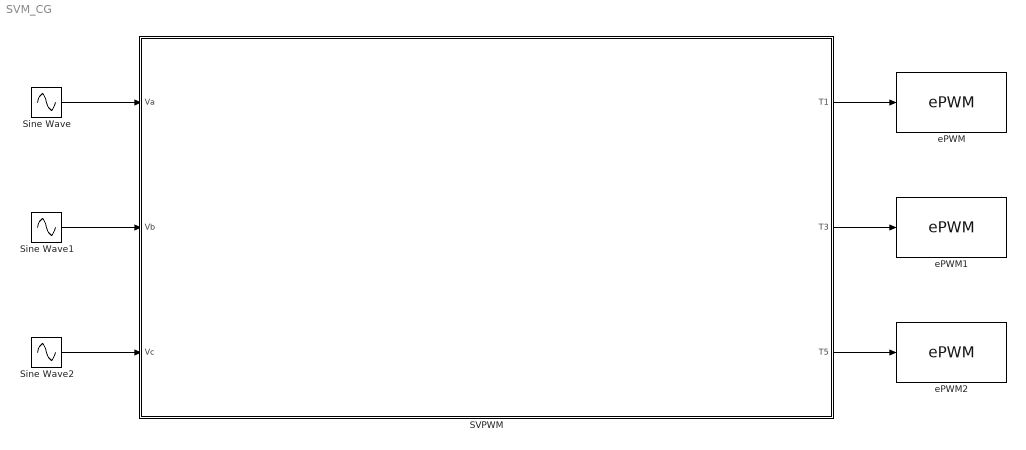
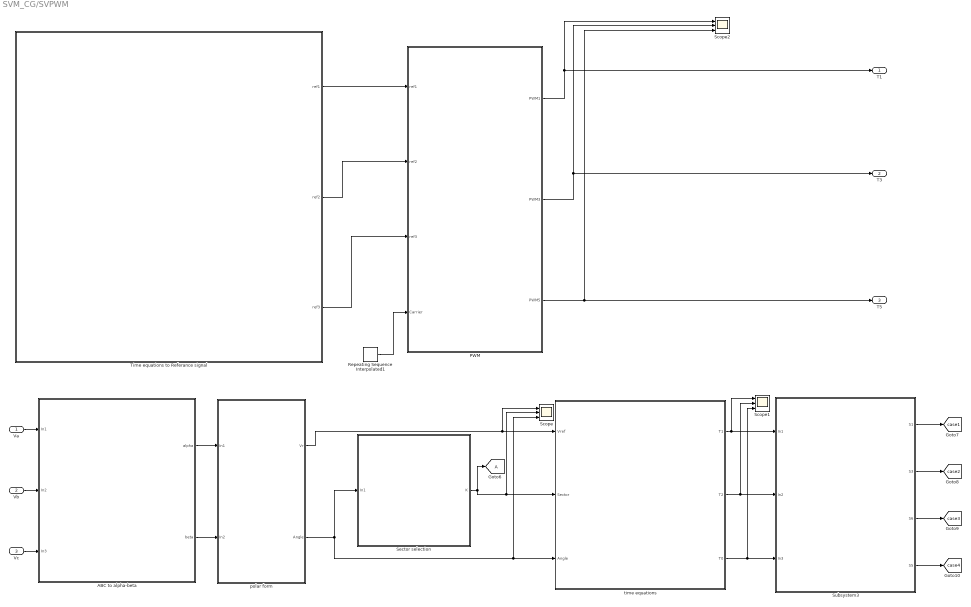
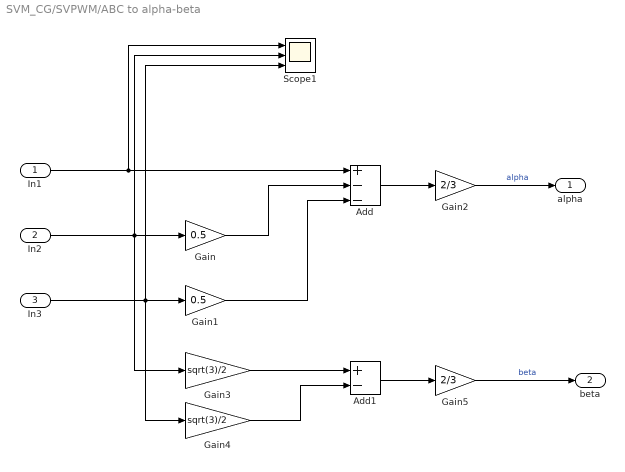
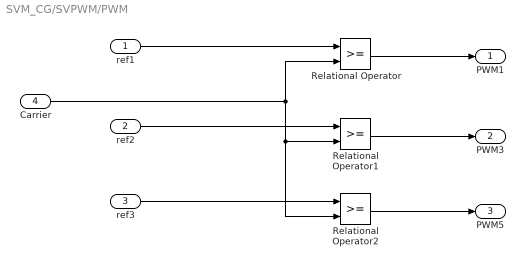
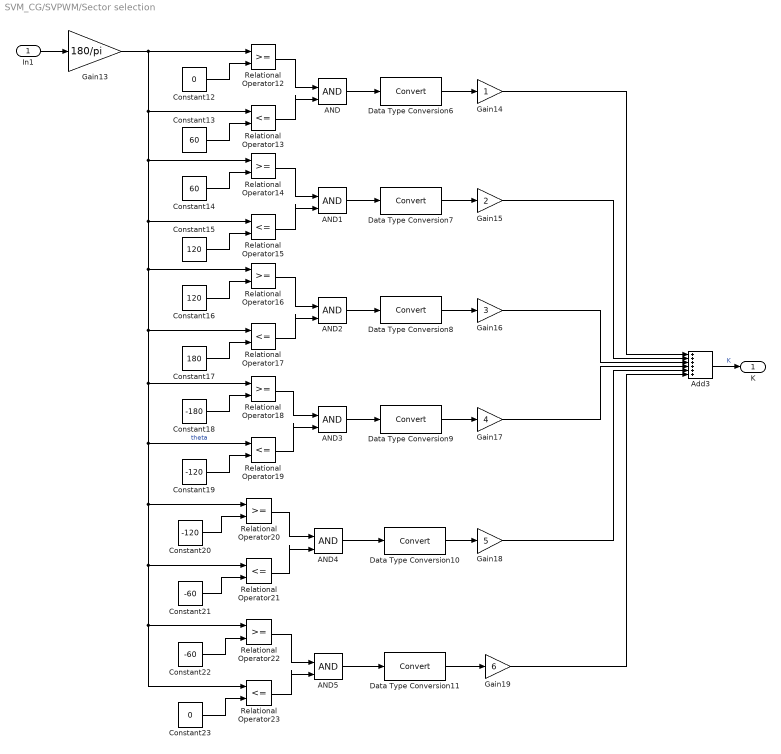
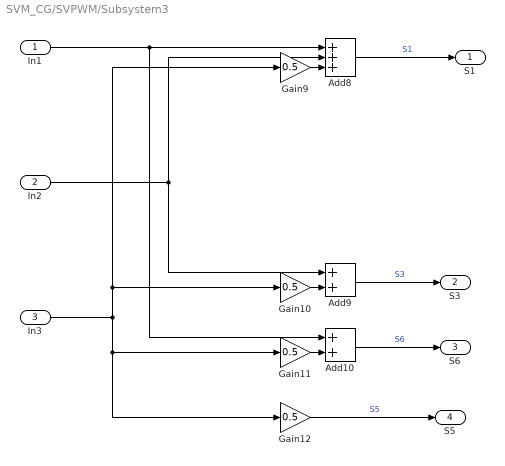
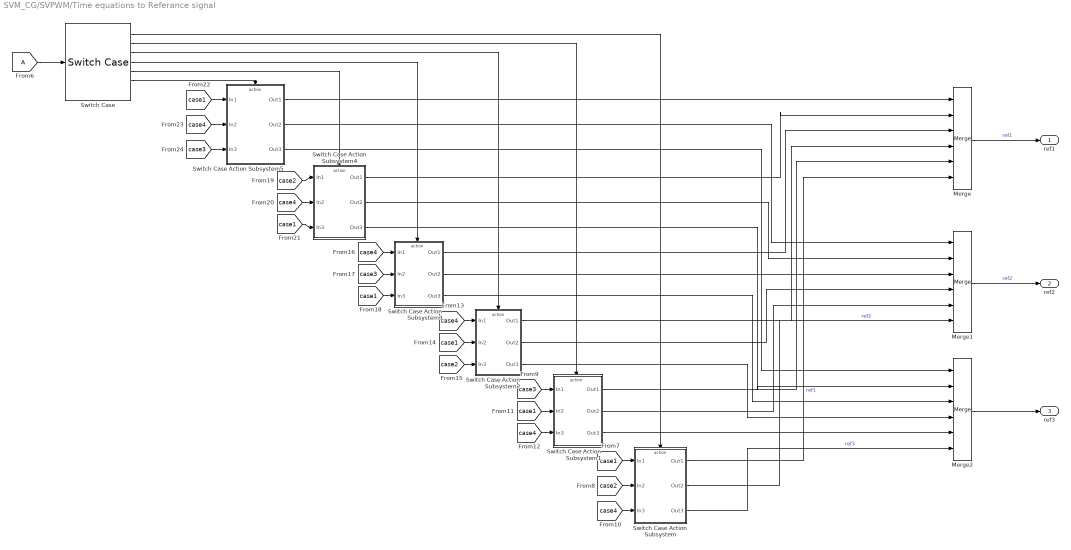
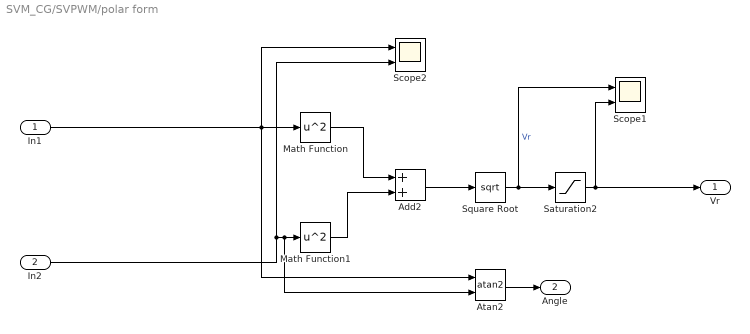
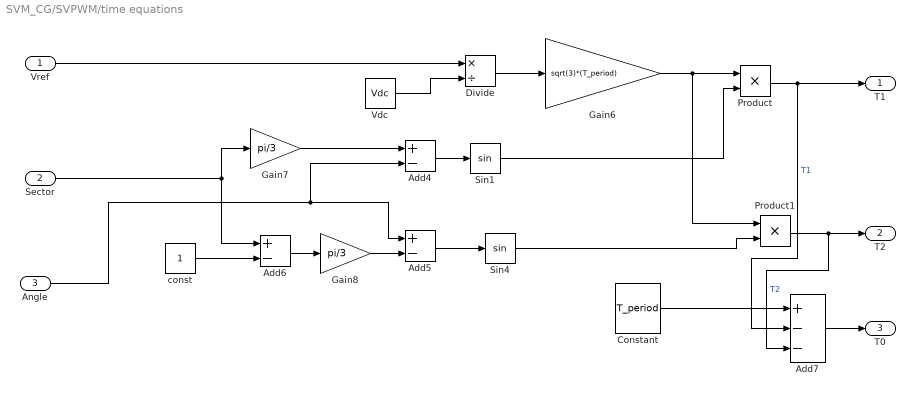
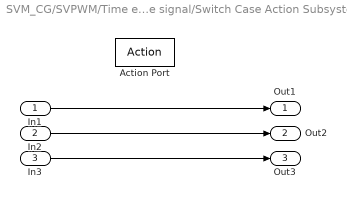
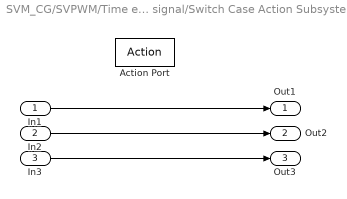
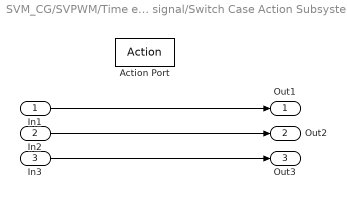
== system SVM_CG/SVPWM/Time equations to Referance signal/Switch Case Action Subsystem3 ==
  In1 : Inport
  In2 : Inport  Port=2
  In3 : Inport  Port=3
  Action Port : ActionPort  ActionPortLabel=case [ 4 ]:
  Out1 : Outport
  Out2 : Outport  Port=2
  Out3 : Outport  Port=3
  wires:
  In1/1 -> Out1/1
  In2/1 -> Out2/1
  In3/1 -> Out3/1

== system SVM_CG/SVPWM/Time equations to Referance signal/Switch Case Action Subsystem4 ==
  In1 : Inport
  In2 : Inport  Port=2
  In3 : Inport  Port=3
  Action Port : ActionPort  ActionPortLabel=case [ 5 ]:
  Out1 : Outport
  Out2 : Outport  Port=2
  Out3 : Outport  Port=3
  wires:
  In1/1 -> Out1/1
  In2/1 -> Out2/1
  In3/1 -> Out3/1

== system SVM_CG/SVPWM/Time equations to Referance signal/Switch Case Action Subsystem5 ==
  In1 : Inport
  In2 : Inport  Port=2
  In3 : Inport  Port=3
  Action Port : ActionPort  ActionPortLabel=case [ 6 ]:
  Out1 : Outport
  Out2 : Outport  Port=2
  Out3 : Outport  Port=3
  wires:
  In1/1 -> Out1/1
  In2/1 -> Out2/1
  In3/1 -> Out3/1

/*
 * File: SVM_CG.c
 *
 * Code generated for Simulink model 'SVM_CG'.
 *
 * Model version                  : 1.1
 * Simulink Coder version         : 24.1 (R2024a) 19-Nov-2023
 * C/C++ source code generated on : Tue May  6 17:00:42 2025
 *
 * Target selection: ert.tlc
 * Embedded hardware selection: Texas Instruments->C2000
 * Code generation objectives: Unspecified
 * Validation result: Not run
 */

#include "SVM_CG.h"
#include "rtwtypes.h"
#include "SVM_CG_private.h"
#include <math.h>
#include "rt_nonfinite.h"
#include <string.h>
#include "rt_defines.h"

/* Block signals (default storage) */
B_SVM_CG_T SVM_CG_B;

/* Block states (default storage) */
DW_SVM_CG_T SVM_CG_DW;

/* Real-time model */
static RT_MODEL_SVM_CG_T SVM_CG_M_;
RT_MODEL_SVM_CG_T *const SVM_CG_M = &SVM_CG_M_;
real_T look1_binlcpw(real_T u0, const real_T bp0[], const real_T table[],
                     uint32_T maxIndex)
{
  real_T frac;
  real_T yL_0d0;
  uint32_T bpIdx;
  uint32_T iLeft;
  uint32_T iRght;

  /* Column-major Lookup 1-D
     Search method: 'binary'
     Use previous index: 'off'
     Interpolation method: 'Linear point-slope'
     Extrapolation method: 'Clip'
     Use last breakpoint for index at or above upper limit: 'off'
     Remove protection against out-of-range input in generated code: 'off'
   */
  /* Prelookup - Index and Fraction
     Index Search method: 'binary'
     Extrapolation method: 'Clip'
     Use previous index: 'off'
     Use last breakpoint for index at or above upper limit: 'off'
     Remove protection against out-of-range input in generated code: 'off'
   */
  if (u0 <= bp0[0UL]) {
    iLeft = 0UL;
    frac = 0.0;
  } else if (u0 < bp0[maxIndex]) {
    /* Binary Search */
    bpIdx = maxIndex >> 1UL;
    iLeft = 0UL;
    iRght = maxIndex;
    while (iRght - iLeft > 1UL) {
      if (u0 < bp0[bpIdx]) {
        iRght = bpIdx;
      } else {
        iLeft = bpIdx;
      }

      bpIdx = (iRght + iLeft) >> 1UL;
    }

    frac = (u0 - bp0[iLeft]) / (bp0[iLeft + 1UL] - bp0[iLeft]);
  } else {
    iLeft = maxIndex - 1UL;
    frac = 1.0;
  }

  /* Column-major Interpolation 1-D
     Interpolation method: 'Linear point-slope'
     Use last breakpoint for index at or above upper limit: 'off'
     Overflow mode: 'portable wrapping'
   */
  yL_0d0 = table[iLeft];
  return (table[iLeft + 1UL] - yL_0d0) * frac + yL_0d0;
}

/*
 * Output and update for action system:
 *    '<S7>/Switch Case Action Subsystem'
 *    '<S7>/Switch Case Action Subsystem1'
 *    '<S7>/Switch Case Action Subsystem2'
 *    '<S7>/Switch Case Action Subsystem3'
 *    '<S7>/Switch Case Action Subsystem4'
 *    '<S7>/Switch Case Action Subsystem5'
 */
void SVM_C_SwitchCaseActionSubsystem(real_T rtu_In1, real_T rtu_In2, real_T
  rtu_In3, real_T *rty_Out1, real_T *rty_Out2, real_T *rty_Out3)
{
  /* SignalConversion generated from: '<S13>/In1' */
  *rty_Out1 = rtu_In1;

  /* SignalConversion generated from: '<S13>/In2' */
  *rty_Out2 = rtu_In2;

  /* SignalConversion generated from: '<S13>/In3' */
  *rty_Out3 = rtu_In3;
}

real_T rt_atan2d_snf(real_T u0, real_T u1)
{
  real_T y;
  int16_T tmp;
  int16_T tmp_0;
  if (rtIsNaN(u0) || rtIsNaN(u1)) {
    y = (rtNaN);
  } else if (rtIsInf(u0) && rtIsInf(u1)) {
    if (u0 > 0.0) {
      tmp = 1;
    } else {
      tmp = -1;
    }

    if (u1 > 0.0) {
      tmp_0 = 1;
    } else {
      tmp_0 = -1;
    }

    y = atan2(tmp, tmp_0);
  } else if (u1 == 0.0) {
    if (u0 > 0.0) {
      y = RT_PI / 2.0;
    } else if (u0 < 0.0) {
      y = -(RT_PI / 2.0);
    } else {
      y = 0.0;
    }
  } else {
    y = atan2(u0, u1);
  }

  return y;
}

/* Model step function */
void SVM_CG_step(void)
{
  real_T rtb_Gain6;
  real_T rtb_theta;
  int16_T rtAction;

  /* Reset subsysRan breadcrumbs */
  srClearBC(SVM_CG_DW.SwitchCaseActionSubsystem.SwitchCaseActionSubsystem_Subsy);

  /* Sin: '<Root>/Sine Wave' incorporates:
   *  Sin: '<Root>/Sine Wave1'
   *  Sin: '<Root>/Sine Wave2'
   */
  rtb_Gain6 = SVM_CG_M->Timing.t[0];

  /* Sin: '<Root>/Sine Wave' */
  SVM_CG_B.SineWave = sin(SVM_CG_P.SineWave_Freq * rtb_Gain6 +
    SVM_CG_P.SineWave_Phase) * SVM_CG_P.SineWave_Amp + SVM_CG_P.SineWave_Bias;

  /* Sin: '<Root>/Sine Wave1' */
  SVM_CG_B.SineWave1 = sin(SVM_CG_P.SineWave1_Freq * rtb_Gain6 +
    SVM_CG_P.SineWave1_Phase) * SVM_CG_P.SineWave1_Amp + SVM_CG_P.SineWave1_Bias;

  /* Sin: '<Root>/Sine Wave2' */
  SVM_CG_B.SineWave2 = sin(SVM_CG_P.SineWave2_Freq * rtb_Gain6 +
    SVM_CG_P.SineWave2_Phase) * SVM_CG_P.SineWave2_Amp + SVM_CG_P.SineWave2_Bias;

  /* Gain: '<S2>/Gain2' incorporates:
   *  Gain: '<S2>/Gain'
   *  Gain: '<S2>/Gain1'
   *  Sum: '<S2>/Add'
   */
  SVM_CG_B.alpha = ((SVM_CG_B.SineWave - SVM_CG_P.Gain_Gain * SVM_CG_B.SineWave1)
                    - SVM_CG_P.Gain1_Gain * SVM_CG_B.SineWave2) *
    SVM_CG_P.Gain2_Gain;

  /* Gain: '<S2>/Gain5' incorporates:
   *  Gain: '<S2>/Gain3'
   *  Gain: '<S2>/Gain4'
   *  Sum: '<S2>/Add1'
   */
  SVM_CG_B.beta = (SVM_CG_P.Gain3_Gain * SVM_CG_B.SineWave1 -
                   SVM_CG_P.Gain4_Gain * SVM_CG_B.SineWave2) *
    SVM_CG_P.Gain5_Gain;

  /* Sqrt: '<S8>/Square Root' incorporates:
   *  Math: '<S8>/Math Function'
   *  Math: '<S8>/Math Function1'
   *  Sum: '<S8>/Add2'
   */
  SVM_CG_B.Vr = sqrt(SVM_CG_B.alpha * SVM_CG_B.alpha + SVM_CG_B.beta *
                     SVM_CG_B.beta);

  /* Saturate: '<S8>/Saturation2' */
  SVM_CG_B.Saturation2 = 0.95 * SVM_CG_P.Vdc / 1.7320508075688772;
  if (!(SVM_CG_B.Vr > SVM_CG_B.Saturation2)) {
    if (SVM_CG_B.Vr < SVM_CG_P.Saturation2_LowerSat) {
      /* Saturate: '<S8>/Saturation2' */
      SVM_CG_B.Saturation2 = SVM_CG_P.Saturation2_LowerSat;
    } else {
      /* Saturate: '<S8>/Saturation2' */
      SVM_CG_B.Saturation2 = SVM_CG_B.Vr;
    }
  }

  /* End of Saturate: '<S8>/Saturation2' */
  /* Gain: '<S9>/Gain6' incorporates:
   *  Constant: '<S9>/Vdc'
   *  Product: '<S9>/Divide'
   */
  rtb_Gain6 = 1.7320508075688772 * SVM_CG_P.T_period * (SVM_CG_B.Saturation2 /
    SVM_CG_P.Vdc);

  /* Trigonometry: '<S8>/Atan2' */
  SVM_CG_B.Atan2 = rt_atan2d_snf(SVM_CG_B.alpha, SVM_CG_B.beta);

  /* Gain: '<S5>/Gain13' */
  rtb_theta = SVM_CG_P.Gain13_Gain * SVM_CG_B.Atan2;

  /* Sum: '<S5>/Add3' incorporates:
   *  Constant: '<S5>/Constant12'
   *  Constant: '<S5>/Constant13'
   *  Constant: '<S5>/Constant14'
   *  Constant: '<S5>/Constant15'
   *  Constant: '<S5>/Constant16'
   *  Constant: '<S5>/Constant17'
   *  Constant: '<S5>/Constant18'
   *  Constant: '<S5>/Constant19'
   *  Constant: '<S5>/Constant20'
   *  Constant: '<S5>/Constant21'
   *  Constant: '<S5>/Constant22'
   *  Constant: '<S5>/Constant23'
   *  DataTypeConversion: '<S5>/Data Type Conversion10'
   *  DataTypeConversion: '<S5>/Data Type Conversion11'
   *  DataTypeConversion: '<S5>/Data Type Conversion6'
   *  DataTypeConversion: '<S5>/Data Type Conversion7'
   *  DataTypeConversion: '<S5>/Data Type Conversion8'
   *  DataTypeConversion: '<S5>/Data Type Conversion9'
   *  Gain: '<S5>/Gain14'
   *  Gain: '<S5>/Gain15'
   *  Gain: '<S5>/Gain16'
   *  Gain: '<S5>/Gain17'
   *  Gain: '<S5>/Gain18'
   *  Gain: '<S5>/Gain19'
   *  Logic: '<S5>/AND'
   *  Logic: '<S5>/AND1'
   *  Logic: '<S5>/AND2'
   *  Logic: '<S5>/AND3'
   *  Logic: '<S5>/AND4'
   *  Logic: '<S5>/AND5'
   *  RelationalOperator: '<S5>/Relational Operator12'
   *  RelationalOperator: '<S5>/Relational Operator13'
   *  RelationalOperator: '<S5>/Relational Operator14'
   *  RelationalOperator: '<S5>/Relational Operator15'
   *  RelationalOperator: '<S5>/Relational Operator16'
   *  RelationalOperator: '<S5>/Relational Operator17'
   *  RelationalOperator: '<S5>/Relational Operator18'
   *  RelationalOperator: '<S5>/Relational Operator19'
   *  RelationalOperator: '<S5>/Relational Operator20'
   *  RelationalOperator: '<S5>/Relational Operator21'
   *  RelationalOperator: '<S5>/Relational Operator22'
   *  RelationalOperator: '<S5>/Relational Operator23'
   */
  SVM_CG_B.K = (((((real32_T)((rtb_theta >= SVM_CG_P.Constant12_Value) &&
    (rtb_theta <= SVM_CG_P.Constant13_Value)) * SVM_CG_P.Gain14_Gain + (real_T)
                   ((rtb_theta >= SVM_CG_P.Constant14_Value) && (rtb_theta <=
    SVM_CG_P.Constant15_Value)) * SVM_CG_P.Gain15_Gain) + (real_T)((rtb_theta >=
    SVM_CG_P.Constant16_Value) && (rtb_theta <= SVM_CG_P.Constant17_Value)) *
                  SVM_CG_P.Gain16_Gain) + (real_T)((rtb_theta >=
    SVM_CG_P.Constant18_Value) && (rtb_theta <= SVM_CG_P.Constant19_Value)) *
                 SVM_CG_P.Gain17_Gain) + (real_T)((rtb_theta >=
    SVM_CG_P.Constant20_Value) && (rtb_theta <= SVM_CG_P.Constant21_Value)) *
                SVM_CG_P.Gain18_Gain) + (real_T)((rtb_theta >=
    SVM_CG_P.Constant22_Value) && (rtb_theta <= SVM_CG_P.Constant23_Value)) *
    SVM_CG_P.Gain19_Gain;

  /* Product: '<S9>/Product' incorporates:
   *  Gain: '<S9>/Gain7'
   *  Sum: '<S9>/Add4'
   *  Trigonometry: '<S9>/Sin1'
   */
  SVM_CG_B.T1 = sin(SVM_CG_P.Gain7_Gain * SVM_CG_B.K - SVM_CG_B.Atan2) *
    rtb_Gain6;

  /* Product: '<S9>/Product1' incorporates:
   *  Constant: '<S9>/const'
   *  Gain: '<S9>/Gain8'
   *  Sum: '<S9>/Add5'
   *  Sum: '<S9>/Add6'
   *  Trigonometry: '<S9>/Sin4'
   */
  SVM_CG_B.T2 = sin(SVM_CG_B.Atan2 - (SVM_CG_B.K - SVM_CG_P.const_Value) *
                    SVM_CG_P.Gain8_Gain) * rtb_Gain6;

  /* Sum: '<S9>/Add7' incorporates:
   *  Constant: '<S9>/Constant'
   */
  SVM_CG_B.Add7 = (SVM_CG_P.T_period - SVM_CG_B.T1) - SVM_CG_B.T2;

  /* SwitchCase: '<S7>/Switch Case' incorporates:
   *  Gain: '<S6>/Gain10'
   *  Gain: '<S6>/Gain11'
   *  Gain: '<S6>/Gain12'
   *  Gain: '<S6>/Gain9'
   *  Sum: '<S6>/Add10'
   *  Sum: '<S6>/Add8'
   *  Sum: '<S6>/Add9'
   */
  if (SVM_CG_B.K < 0.0) {
    rtb_Gain6 = ceil(SVM_CG_B.K);
  } else {
    rtb_Gain6 = floor(SVM_CG_B.K);
  }

  if (rtIsNaN(rtb_Gain6) || rtIsInf(rtb_Gain6)) {
    rtb_Gain6 = 0.0;
  } else {
    rtb_Gain6 = fmod(rtb_Gain6, 4.294967296E+9);
  }

  switch (rtb_Gain6 < 0.0 ? -(int32_T)(uint32_T)-rtb_Gain6 : (int32_T)(uint32_T)
          rtb_Gain6) {
   case 1L:
    rtAction = 0;
    break;

   case 2L:
    rtAction = 1;
    break;

   case 3L:
    rtAction = 2;
    break;

   case 4L:
    rtAction = 3;
    break;

   case 5L:
    rtAction = 4;
    break;

   case 6L:
    rtAction = 5;
    break;

   default:
    rtAction = 6;
    break;
  }

  switch (rtAction) {
   case 0:
    /* Outputs for IfAction SubSystem: '<S7>/Switch Case Action Subsystem' incorporates:
     *  ActionPort: '<S13>/Action Port'
     */
    SVM_C_SwitchCaseActionSubsystem((SVM_CG_B.T1 + SVM_CG_B.T2) +
      SVM_CG_P.Gain9_Gain * SVM_CG_B.Add7, SVM_CG_B.T2 + SVM_CG_P.Gain10_Gain *
      SVM_CG_B.Add7, SVM_CG_P.Gain12_Gain * SVM_CG_B.Add7, &SVM_CG_B.ref1,
      &SVM_CG_B.ref2, &SVM_CG_B.Merge2);
    srUpdateBC
      (SVM_CG_DW.SwitchCaseActionSubsystem.SwitchCaseActionSubsystem_Subsy);

    /* End of Outputs for SubSystem: '<S7>/Switch Case Action Subsystem' */
    break;

   case 1:
    /* Outputs for IfAction SubSystem: '<S7>/Switch Case Action Subsystem1' incorporates:
     *  ActionPort: '<S14>/Action Port'
     */
    SVM_C_SwitchCaseActionSubsystem(SVM_CG_B.T1 + SVM_CG_P.Gain11_Gain *
      SVM_CG_B.Add7, (SVM_CG_B.T1 + SVM_CG_B.T2) + SVM_CG_P.Gain9_Gain *
      SVM_CG_B.Add7, SVM_CG_P.Gain12_Gain * SVM_CG_B.Add7, &SVM_CG_B.ref1,
      &SVM_CG_B.ref2, &SVM_CG_B.Merge2);
    srUpdateBC
      (SVM_CG_DW.SwitchCaseActionSubsystem1.SwitchCaseActionSubsystem_Subsy);

    /* End of Outputs for SubSystem: '<S7>/Switch Case Action Subsystem1' */
    break;

   case 2:
    /* Outputs for IfAction SubSystem: '<S7>/Switch Case Action Subsystem2' incorporates:
     *  ActionPort: '<S15>/Action Port'
     */
    SVM_C_SwitchCaseActionSubsystem(SVM_CG_P.Gain12_Gain * SVM_CG_B.Add7,
      (SVM_CG_B.T1 + SVM_CG_B.T2) + SVM_CG_P.Gain9_Gain * SVM_CG_B.Add7,
      SVM_CG_B.T2 + SVM_CG_P.Gain10_Gain * SVM_CG_B.Add7, &SVM_CG_B.ref1,
      &SVM_CG_B.ref2, &SVM_CG_B.Merge2);
    srUpdateBC
      (SVM_CG_DW.SwitchCaseActionSubsystem2.SwitchCaseActionSubsystem_Subsy);

    /* End of Outputs for SubSystem: '<S7>/Switch Case Action Subsystem2' */
    break;

   case 3:
    /* Outputs for IfAction SubSystem: '<S7>/Switch Case Action Subsystem3' incorporates:
     *  ActionPort: '<S16>/Action Port'
     */
    SVM_C_SwitchCaseActionSubsystem(SVM_CG_P.Gain12_Gain * SVM_CG_B.Add7,
      SVM_CG_B.T1 + SVM_CG_P.Gain11_Gain * SVM_CG_B.Add7, (SVM_CG_B.T1 +
      SVM_CG_B.T2) + SVM_CG_P.Gain9_Gain * SVM_CG_B.Add7, &SVM_CG_B.ref1,
      &SVM_CG_B.ref2, &SVM_CG_B.Merge2);
    srUpdateBC
      (SVM_CG_DW.SwitchCaseActionSubsystem3.SwitchCaseActionSubsystem_Subsy);

    /* End of Outputs for SubSystem: '<S7>/Switch Case Action Subsystem3' */
    break;

   case 4:
    /* Outputs for IfAction SubSystem: '<S7>/Switch Case Action Subsystem4' incorporates:
     *  ActionPort: '<S17>/Action Port'
     */
    SVM_C_SwitchCaseActionSubsystem(SVM_CG_B.T2 + SVM_CG_P.Gain10_Gain *
      SVM_CG_B.Add7, SVM_CG_P.Gain12_Gain * SVM_CG_B.Add7, (SVM_CG_B.T1 +
      SVM_CG_B.T2) + SVM_CG_P.Gain9_Gain * SVM_CG_B.Add7, &SVM_CG_B.ref1,
      &SVM_CG_B.ref2, &SVM_CG_B.Merge2);
    srUpdateBC
      (SVM_CG_DW.SwitchCaseActionSubsystem4.SwitchCaseActionSubsystem_Subsy);

    /* End of Outputs for SubSystem: '<S7>/Switch Case Action Subsystem4' */
    break;

   case 5:
    /* Outputs for IfAction SubSystem: '<S7>/Switch Case Action Subsystem5' incorporates:
     *  ActionPort: '<S18>/Action Port'
     */
    SVM_C_SwitchCaseActionSubsystem((SVM_CG_B.T1 + SVM_CG_B.T2) +
      SVM_CG_P.Gain9_Gain * SVM_CG_B.Add7, SVM_CG_P.Gain12_Gain * SVM_CG_B.Add7,
      SVM_CG_B.T1 + SVM_CG_P.Gain11_Gain * SVM_CG_B.Add7, &SVM_CG_B.ref1,
      &SVM_CG_B.ref2, &SVM_CG_B.Merge2);
    srUpdateBC
      (SVM_CG_DW.SwitchCaseActionSubsystem5.SwitchCaseActionSubsystem_Subsy);

    /* End of Outputs for SubSystem: '<S7>/Switch Case Action Subsystem5' */
    break;
  }

  /* End of SwitchCase: '<S7>/Switch Case' */
  /* Lookup_n-D: '<S4>/Lookup' incorporates:
   *  DataTypeConversion: '<S4>/Data Type Conversion'
   *  SampleTimeMath: '<S4>/Sample Time Math'
   *  UnitDelay: '<S10>/Output'
   *
   * About '<S4>/Sample Time Math':
   *  y = u * K where K = ( w * Ts )
   *   */
  rtb_Gain6 = look1_binlcpw((real_T)SVM_CG_DW.Output_DSTATE *
    SVM_CG_P.SampleTimeMath_WtEt, SVM_CG_P.RepeatingSequenceInterpolated_g,
    SVM_CG_P.RepeatingSequenceInterpolated1_, 2UL);

  /* RelationalOperator: '<S3>/Relational Operator' */
  SVM_CG_B.RelationalOperator = (SVM_CG_B.ref1 >= rtb_Gain6);

  /* S-Function (c2802xpwm): '<Root>/ePWM' */

  /*-- Update CMPA value for ePWM1 --*/
  {
    EPwm1Regs.CMPA.bit.CMPA = (uint16_T)(SVM_CG_B.RelationalOperator);
  }

  /* RelationalOperator: '<S3>/Relational Operator1' */
  SVM_CG_B.RelationalOperator1 = (SVM_CG_B.ref2 >= rtb_Gain6);

  /* S-Function (c2802xpwm): '<Root>/ePWM1' */

  /*-- Update CMPA value for ePWM2 --*/
  {
    EPwm2Regs.CMPA.bit.CMPA = (uint16_T)(SVM_CG_B.RelationalOperator1);
  }

  /* RelationalOperator: '<S3>/Relational Operator2' */
  SVM_CG_B.RelationalOperator2 = (SVM_CG_B.Merge2 >= rtb_Gain6);

  /* S-Function (c2802xpwm): '<Root>/ePWM2' */

  /*-- Update CMPA value for ePWM3 --*/
  {
    EPwm3Regs.CMPA.bit.CMPA = (uint16_T)(SVM_CG_B.RelationalOperator2);
  }

  /* Sum: '<S11>/FixPt Sum1' incorporates:
   *  Constant: '<S11>/FixPt Constant'
   *  UnitDelay: '<S10>/Output'
   */
  SVM_CG_DW.Output_DSTATE = (SVM_CG_DW.Output_DSTATE +
    SVM_CG_P.FixPtConstant_Value) & 255U;

  /* Switch: '<S12>/FixPt Switch' incorporates:
   *  Constant: '<S12>/Constant'
   *  Sum: '<S11>/FixPt Sum1'
   */
  if (SVM_CG_DW.Output_DSTATE > SVM_CG_P.WrapToZero_Threshold) {
    SVM_CG_DW.Output_DSTATE = SVM_CG_P.Constant_Value;
  }

  /* End of Switch: '<S12>/FixPt Switch' */
  {                                    /* Sample time: [1.0E-6s, 0.0s] */
    extmodeErrorCode_T errorCode = EXTMODE_SUCCESS;
    extmodeSimulationTime_T currentTime = (extmodeSimulationTime_T)
      (((SVM_CG_M->Timing.clockTick1+SVM_CG_M->Timing.clockTickH1* 4294967296.0)
        * 1) + 0)
      ;

    /* Trigger External Mode event */
    errorCode = extmodeEvent(1,currentTime);
    if (errorCode != EXTMODE_SUCCESS) {
      /* Code to handle External Mode event errors
         may be added here */
    }
  }

  /* Update absolute time for base rate */
  /* The "clockTick0" counts the number of times the code of this task has
   * been executed. The absolute time is the multiplication of "clockTick0"
   * and "Timing.stepSize0". Size of "clockTick0" ensures timer will not
   * overflow during the application lifespan selected.
   * Timer of this task consists of two 32 bit unsigned integers.
   * The two integers represent the low bits Timing.clockTick0 and the high bits
   * Timing.clockTickH0. When the low bit overflows to 0, the high bits increment.
   */
  if (!(++SVM_CG_M->Timing.clockTick0)) {
    ++SVM_CG_M->Timing.clockTickH0;
  }

  SVM_CG_M->Timing.t[0] = SVM_CG_M->Timing.clockTick0 *
    SVM_CG_M->Timing.stepSize0 + SVM_CG_M->Timing.clockTickH0 *
    SVM_CG_M->Timing.stepSize0 * 4294967296.0;

  {
    /* Update absolute timer for sample time: [1.0E-6s, 0.0s] */
    /* The "clockTick1" counts the number of times the code of this task has
     * been executed. The resolution of this integer timer is 1.0E-6, which is the step size
     * of the task. Size of "clockTick1" ensures timer will not overflow during the
     * application lifespan selected.
     * Timer of this task consists of two 32 bit unsigned integers.
     * The two integers represent the low bits Timing.clockTick1 and the high bits
     * Timing.clockTickH1. When the low bit overflows to 0, the high bits increment.
     */
    SVM_CG_M->Timing.clockTick1++;
    if (!SVM_CG_M->Timing.clockTick1) {
      SVM_CG_M->Timing.clockTickH1++;
    }
  }
}
